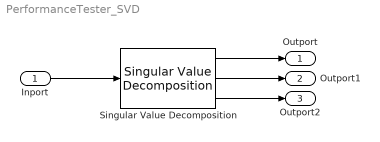
/*
 * Academic License - for use in teaching, academic research, and meeting
 * course requirements at degree granting institutions only.  Not for
 * government, commercial, or other organizational use.
 *
 * File: PerformanceTester_SVD.c
 *
 * Code generated for Simulink model 'PerformanceTester_SVD'.
 *
 * Model version                  : 3.1
 * Simulink Coder version         : 9.4 (R2020b) 29-Jul-2020
 * C/C++ source code generated on : Sun Nov 15 18:27:21 2020
 *
 * Target selection: ert.tlc
 * Embedded hardware selection: ARM Compatible->ARM Cortex-M
 * Code generation objectives:
 *    1. Execution efficiency
 *    2. RAM efficiency
 * Validation result: Not run
 */

#include "PerformanceTester_SVD.h"
#define NumBitsPerChar                 8U

/* Block signals and states (default storage) */
DW rtDW;

/* External inputs (root inport signals with default storage) */
ExtU rtU;

/* External outputs (root outports fed by signals with default storage) */
ExtY rtY;

/* Forward declaration for local functions */
static void isfinite(const real_T x[3000], boolean_T b[3000]);
static real_T xnrm2(int32_T n, const real_T x[3000], int32_T ix0);
static real_T xdotc(int32_T n, const real_T x[3000], int32_T ix0, const real_T
                    y[3000], int32_T iy0);
static void xaxpy(int32_T n, real_T a, int32_T ix0, const real_T y[3000],
                  int32_T iy0, real_T b_y[3000]);
static real_T xnrm2_n(int32_T n, const real_T x[50], int32_T ix0);
static void xaxpy_n5iz(int32_T n, real_T a, const real_T x[3000], int32_T ix0,
  real_T y[60], int32_T iy0);
static void xaxpy_n5(int32_T n, real_T a, const real_T x[60], int32_T ix0, const
                     real_T y[3000], int32_T iy0, real_T b_y[3000]);
static real_T xdotc_n(int32_T n, const real_T x[2500], int32_T ix0, const real_T
                      y[2500], int32_T iy0);
static void xaxpy_n5i(int32_T n, real_T a, int32_T ix0, const real_T y[2500],
                      int32_T iy0, real_T b_y[2500]);
static void xswap(const real_T x[2500], int32_T ix0, int32_T iy0, real_T b_x
                  [2500]);
static void xswap_n(const real_T x[3000], int32_T ix0, int32_T iy0, real_T b_x
                    [3000]);
static void xrotg(real_T a, real_T b, real_T *b_a, real_T *b_b, real_T *c,
                  real_T *s);
static void xrot(const real_T x[2500], int32_T ix0, int32_T iy0, real_T c,
                 real_T s, real_T b_x[2500]);
static void xrot_n(const real_T x[3000], int32_T ix0, int32_T iy0, real_T c,
                   real_T s, real_T b_x[3000]);
static void svd_n(const real_T A[3000], real_T U[3000], real_T s[50], real_T V
                  [2500]);
static void svd(const real_T A[3000], real_T U[3000], real_T S[2500], real_T V
                [2500]);
static void SystemCore_step(const real_T varargin_1[3000], real_T varargout_1
  [3000], real_T varargout_2[50], real_T varargout_3[2500]);
static real_T rtGetNaN(void);
static real32_T rtGetNaNF(void);
extern real_T rtInf;
extern real_T rtMinusInf;
extern real_T rtNaN;
extern real32_T rtInfF;
extern real32_T rtMinusInfF;
extern real32_T rtNaNF;
static void rt_InitInfAndNaN(size_t realSize);
static boolean_T rtIsInf(real_T value);
static boolean_T rtIsInfF(real32_T value);
static boolean_T rtIsNaN(real_T value);
static boolean_T rtIsNaNF(real32_T value);
typedef struct {
  struct {
    uint32_T wordH;
    uint32_T wordL;
  } words;
} BigEndianIEEEDouble;

typedef struct {
  struct {
    uint32_T wordL;
    uint32_T wordH;
  } words;
} LittleEndianIEEEDouble;

typedef struct {
  union {
    real32_T wordLreal;
    uint32_T wordLuint;
  } wordL;
} IEEESingle;

real_T rtInf;
real_T rtMinusInf;
real_T rtNaN;
real32_T rtInfF;
real32_T rtMinusInfF;
real32_T rtNaNF;
static real_T rtGetInf(void);
static real32_T rtGetInfF(void);
static real_T rtGetMinusInf(void);
static real32_T rtGetMinusInfF(void);

/*
 * Initialize rtNaN needed by the generated code.
 * NaN is initialized as non-signaling. Assumes IEEE.
 */
static real_T rtGetNaN(void)
{
  size_t bitsPerReal = sizeof(real_T) * (NumBitsPerChar);
  real_T nan = 0.0;
  if (bitsPerReal == 32U) {
    nan = rtGetNaNF();
  } else {
    union {
      LittleEndianIEEEDouble bitVal;
      real_T fltVal;
    } tmpVal;

    tmpVal.bitVal.words.wordH = 0xFFF80000U;
    tmpVal.bitVal.words.wordL = 0x00000000U;
    nan = tmpVal.fltVal;
  }

  return nan;
}

/*
 * Initialize rtNaNF needed by the generated code.
 * NaN is initialized as non-signaling. Assumes IEEE.
 */
static real32_T rtGetNaNF(void)
{
  IEEESingle nanF = { { 0 } };

  nanF.wordL.wordLuint = 0xFFC00000U;
  return nanF.wordL.wordLreal;
}

/*
 * Initialize the rtInf, rtMinusInf, and rtNaN needed by the
 * generated code. NaN is initialized as non-signaling. Assumes IEEE.
 */
static void rt_InitInfAndNaN(size_t realSize)
{
  (void) (realSize);
  rtNaN = rtGetNaN();
  rtNaNF = rtGetNaNF();
  rtInf = rtGetInf();
  rtInfF = rtGetInfF();
  rtMinusInf = rtGetMinusInf();
  rtMinusInfF = rtGetMinusInfF();
}

/* Test if value is infinite */
static boolean_T rtIsInf(real_T value)
{
  return (boolean_T)((value==rtInf || value==rtMinusInf) ? 1U : 0U);
}

/* Test if single-precision value is infinite */
static boolean_T rtIsInfF(real32_T value)
{
  return (boolean_T)(((value)==rtInfF || (value)==rtMinusInfF) ? 1U : 0U);
}

/* Test if value is not a number */
static boolean_T rtIsNaN(real_T value)
{
  boolean_T result = (boolean_T) 0;
  size_t bitsPerReal = sizeof(real_T) * (NumBitsPerChar);
  if (bitsPerReal == 32U) {
    result = rtIsNaNF((real32_T)value);
  } else {
    union {
      LittleEndianIEEEDouble bitVal;
      real_T fltVal;
    } tmpVal;

    tmpVal.fltVal = value;
    result = (boolean_T)((tmpVal.bitVal.words.wordH & 0x7FF00000) == 0x7FF00000 &&
                         ( (tmpVal.bitVal.words.wordH & 0x000FFFFF) != 0 ||
                          (tmpVal.bitVal.words.wordL != 0) ));
  }

  return result;
}

/* Test if single-precision value is not a number */
static boolean_T rtIsNaNF(real32_T value)
{
  IEEESingle tmp;
  tmp.wordL.wordLreal = value;
  return (boolean_T)( (tmp.wordL.wordLuint & 0x7F800000) == 0x7F800000 &&
                     (tmp.wordL.wordLuint & 0x007FFFFF) != 0 );
}

/*
 * Initialize rtInf needed by the generated code.
 * Inf is initialized as non-signaling. Assumes IEEE.
 */
static real_T rtGetInf(void)
{
  size_t bitsPerReal = sizeof(real_T) * (NumBitsPerChar);
  real_T inf = 0.0;
  if (bitsPerReal == 32U) {
    inf = rtGetInfF();
  } else {
    union {
      LittleEndianIEEEDouble bitVal;
      real_T fltVal;
    } tmpVal;

    tmpVal.bitVal.words.wordH = 0x7FF00000U;
    tmpVal.bitVal.words.wordL = 0x00000000U;
    inf = tmpVal.fltVal;
  }

  return inf;
}

/*
 * Initialize rtInfF needed by the generated code.
 * Inf is initialized as non-signaling. Assumes IEEE.
 */
static real32_T rtGetInfF(void)
{
  IEEESingle infF;
  infF.wordL.wordLuint = 0x7F800000U;
  return infF.wordL.wordLreal;
}

/*
 * Initialize rtMinusInf needed by the generated code.
 * Inf is initialized as non-signaling. Assumes IEEE.
 */
static real_T rtGetMinusInf(void)
{
  size_t bitsPerReal = sizeof(real_T) * (NumBitsPerChar);
  real_T minf = 0.0;
  if (bitsPerReal == 32U) {
    minf = rtGetMinusInfF();
  } else {
    union {
      LittleEndianIEEEDouble bitVal;
      real_T fltVal;
    } tmpVal;

    tmpVal.bitVal.words.wordH = 0xFFF00000U;
    tmpVal.bitVal.words.wordL = 0x00000000U;
    minf = tmpVal.fltVal;
  }

  return minf;
}

/*
 * Initialize rtMinusInfF needed by the generated code.
 * Inf is initialized as non-signaling. Assumes IEEE.
 */
static real32_T rtGetMinusInfF(void)
{
  IEEESingle minfF;
  minfF.wordL.wordLuint = 0xFF800000U;
  return minfF.wordL.wordLreal;
}

static void isfinite(const real_T x[3000], boolean_T b[3000])
{
  real_T x_0;
  int32_T i;
  for (i = 0; i < 3000; i++) {
    x_0 = x[i];
    b[i] = ((!rtIsInf(x_0)) && (!rtIsNaN(x_0)));
  }
}

static real_T xnrm2(int32_T n, const real_T x[3000], int32_T ix0)
{
  real_T absxk;
  real_T scale;
  real_T t;
  real_T y;
  int32_T k;
  int32_T kend;
  y = 0.0;
  scale = 3.3121686421112381E-170;
  kend = ix0 + n;
  for (k = ix0; k < kend; k++) {
    absxk = fabs(x[k - 1]);
    if (absxk > scale) {
      t = scale / absxk;
      y = y * t * t + 1.0;
      scale = absxk;
    } else {
      t = absxk / scale;
      y += t * t;
    }
  }

  return scale * sqrt(y);
}

static real_T xdotc(int32_T n, const real_T x[3000], int32_T ix0, const real_T
                    y[3000], int32_T iy0)
{
  real_T d;
  int32_T ix;
  int32_T iy;
  int32_T k;
  d = 0.0;
  ix = ix0 - 1;
  iy = iy0 - 1;
  for (k = 0; k < n; k++) {
    d += x[ix] * y[iy];
    ix++;
    iy++;
  }

  return d;
}

static void xaxpy(int32_T n, real_T a, int32_T ix0, const real_T y[3000],
                  int32_T iy0, real_T b_y[3000])
{
  int32_T ix;
  int32_T iy;
  int32_T k;
  memcpy(&b_y[0], &y[0], 3000U * sizeof(real_T));
  if (!(a == 0.0)) {
    ix = ix0;
    iy = iy0 - 1;
    for (k = 0; k < n; k++) {
      b_y[iy] += b_y[ix - 1] * a;
      ix++;
      iy++;
    }
  }
}

static real_T xnrm2_n(int32_T n, const real_T x[50], int32_T ix0)
{
  real_T absxk;
  real_T scale;
  real_T t;
  real_T y;
  int32_T k;
  int32_T kend;
  y = 0.0;
  scale = 3.3121686421112381E-170;
  kend = ix0 + n;
  for (k = ix0; k < kend; k++) {
    absxk = fabs(x[k - 1]);
    if (absxk > scale) {
      t = scale / absxk;
      y = y * t * t + 1.0;
      scale = absxk;
    } else {
      t = absxk / scale;
      y += t * t;
    }
  }

  return scale * sqrt(y);
}

static void xaxpy_n5iz(int32_T n, real_T a, const real_T x[3000], int32_T ix0,
  real_T y[60], int32_T iy0)
{
  int32_T ix;
  int32_T iy;
  int32_T k;
  if (!(a == 0.0)) {
    ix = ix0;
    iy = iy0 - 1;
    for (k = 0; k < n; k++) {
      y[iy] += x[ix - 1] * a;
      ix++;
      iy++;
    }
  }
}

static void xaxpy_n5(int32_T n, real_T a, const real_T x[60], int32_T ix0, const
                     real_T y[3000], int32_T iy0, real_T b_y[3000])
{
  int32_T ix;
  int32_T iy;
  int32_T k;
  memcpy(&b_y[0], &y[0], 3000U * sizeof(real_T));
  if (!(a == 0.0)) {
    ix = ix0;
    iy = iy0 - 1;
    for (k = 0; k < n; k++) {
      b_y[iy] += x[ix - 1] * a;
      ix++;
      iy++;
    }
  }
}

static real_T xdotc_n(int32_T n, const real_T x[2500], int32_T ix0, const real_T
                      y[2500], int32_T iy0)
{
  real_T d;
  int32_T ix;
  int32_T iy;
  int32_T k;
  d = 0.0;
  ix = ix0 - 1;
  iy = iy0 - 1;
  for (k = 0; k < n; k++) {
    d += x[ix] * y[iy];
    ix++;
    iy++;
  }

  return d;
}

static void xaxpy_n5i(int32_T n, real_T a, int32_T ix0, const real_T y[2500],
                      int32_T iy0, real_T b_y[2500])
{
  int32_T ix;
  int32_T iy;
  int32_T k;
  memcpy(&b_y[0], &y[0], 2500U * sizeof(real_T));
  if (!(a == 0.0)) {
    ix = ix0;
    iy = iy0 - 1;
    for (k = 0; k < n; k++) {
      b_y[iy] += b_y[ix - 1] * a;
      ix++;
      iy++;
    }
  }
}

static void xswap(const real_T x[2500], int32_T ix0, int32_T iy0, real_T b_x
                  [2500])
{
  real_T temp;
  int32_T ix;
  int32_T iy;
  int32_T k;
  memcpy(&b_x[0], &x[0], 2500U * sizeof(real_T));
  ix = ix0 - 1;
  iy = iy0 - 1;
  for (k = 0; k < 50; k++) {
    temp = b_x[ix];
    b_x[ix] = b_x[iy];
    b_x[iy] = temp;
    ix++;
    iy++;
  }
}

static void xswap_n(const real_T x[3000], int32_T ix0, int32_T iy0, real_T b_x
                    [3000])
{
  real_T temp;
  int32_T ix;
  int32_T iy;
  int32_T k;
  memcpy(&b_x[0], &x[0], 3000U * sizeof(real_T));
  ix = ix0 - 1;
  iy = iy0 - 1;
  for (k = 0; k < 60; k++) {
    temp = b_x[ix];
    b_x[ix] = b_x[iy];
    b_x[iy] = temp;
    ix++;
    iy++;
  }
}

static void xrotg(real_T a, real_T b, real_T *b_a, real_T *b_b, real_T *c,
                  real_T *s)
{
  real_T absa;
  real_T absb;
  real_T ads;
  real_T bds;
  real_T roe;
  real_T scale;
  roe = b;
  absa = fabs(a);
  absb = fabs(b);
  if (absa > absb) {
    roe = a;
  }

  scale = absa + absb;
  if (scale == 0.0) {
    *s = 0.0;
    *c = 1.0;
    *b_a = 0.0;
    *b_b = 0.0;
  } else {
    ads = absa / scale;
    bds = absb / scale;
    *b_a = sqrt(ads * ads + bds * bds) * scale;
    if (roe < 0.0) {
      *b_a = -*b_a;
    }

    *c = a / *b_a;
    *s = b / *b_a;
    if (absa > absb) {
      *b_b = *s;
    } else if (*c != 0.0) {
      *b_b = 1.0 / *c;
    } else {
      *b_b = 1.0;
    }
  }
}

static void xrot(const real_T x[2500], int32_T ix0, int32_T iy0, real_T c,
                 real_T s, real_T b_x[2500])
{
  real_T temp;
  int32_T ix;
  int32_T iy;
  int32_T k;
  memcpy(&b_x[0], &x[0], 2500U * sizeof(real_T));
  ix = ix0 - 1;
  iy = iy0 - 1;
  for (k = 0; k < 50; k++) {
    temp = c * b_x[ix] + s * b_x[iy];
    b_x[iy] = c * b_x[iy] - s * b_x[ix];
    b_x[ix] = temp;
    iy++;
    ix++;
  }
}

static void xrot_n(const real_T x[3000], int32_T ix0, int32_T iy0, real_T c,
                   real_T s, real_T b_x[3000])
{
  real_T temp;
  int32_T ix;
  int32_T iy;
  int32_T k;
  memcpy(&b_x[0], &x[0], 3000U * sizeof(real_T));
  ix = ix0 - 1;
  iy = iy0 - 1;
  for (k = 0; k < 60; k++) {
    temp = c * b_x[ix] + s * b_x[iy];
    b_x[iy] = c * b_x[iy] - s * b_x[ix];
    b_x[ix] = temp;
    iy++;
    ix++;
  }
}

static void svd_n(const real_T A[3000], real_T U[3000], real_T s[50], real_T V
                  [2500])
{
  real_T work[60];
  real_T e[50];
  real_T s_0[50];
  real_T emm1;
  real_T nrm;
  real_T rt;
  real_T shift;
  real_T smm1;
  real_T sqds;
  real_T ztest;
  real_T ztest0;
  real_T ztest0_tmp;
  int32_T colqp1;
  int32_T m;
  int32_T qjj;
  int32_T qp1;
  int32_T qp1jj;
  int32_T qq;
  boolean_T apply_transform;
  boolean_T exitg1;
  memcpy(&rtDW.A[0], &A[0], 3000U * sizeof(real_T));
  memset(&s_0[0], 0, 50U * sizeof(real_T));
  memset(&e[0], 0, 50U * sizeof(real_T));
  memset(&work[0], 0, 60U * sizeof(real_T));
  memset(&U[0], 0, 3000U * sizeof(real_T));
  memset(&rtDW.Vf[0], 0, 2500U * sizeof(real_T));
  for (m = 0; m < 50; m++) {
    qp1 = m + 2;
    colqp1 = 60 * m + m;
    qq = colqp1 + 1;
    apply_transform = false;
    nrm = xnrm2(60 - m, rtDW.A, colqp1 + 1);
    if (nrm > 0.0) {
      apply_transform = true;
      if (rtDW.A[colqp1] < 0.0) {
        s_0[m] = -nrm;
      } else {
        s_0[m] = nrm;
      }

      if (fabs(s_0[m]) >= 1.0020841800044864E-292) {
        nrm = 1.0 / s_0[m];
        qp1jj = (colqp1 - m) + 1;
        for (qjj = qq; qjj <= qp1jj + 59; qjj++) {
          rtDW.A[qjj - 1] *= nrm;
        }
      } else {
        qp1jj = (colqp1 - m) + 1;
        for (qjj = qq; qjj <= qp1jj + 59; qjj++) {
          rtDW.A[qjj - 1] /= s_0[m];
        }
      }

      rtDW.A[colqp1]++;
      s_0[m] = -s_0[m];
    } else {
      s_0[m] = 0.0;
    }

    for (qp1jj = qp1; qp1jj < 51; qp1jj++) {
      qjj = ((qp1jj - 1) * 60 + m) + 1;
      if (apply_transform) {
        memcpy(&rtDW.A_m[0], &rtDW.A[0], 3000U * sizeof(real_T));
        xaxpy(60 - m, -(xdotc(60 - m, rtDW.A, colqp1 + 1, rtDW.A, qjj) /
                        rtDW.A[colqp1]), colqp1 + 1, rtDW.A_m, qjj, rtDW.A);
      }

      e[qp1jj - 1] = rtDW.A[qjj - 1];
    }

    for (qq = m + 1; qq < 61; qq++) {
      qp1jj = (60 * m + qq) - 1;
      U[qp1jj] = rtDW.A[qp1jj];
    }

    if (m + 1 <= 48) {
      nrm = xnrm2_n(49 - m, e, m + 2);
      if (nrm == 0.0) {
        e[m] = 0.0;
      } else {
        if (e[m + 1] < 0.0) {
          e[m] = -nrm;
        } else {
          e[m] = nrm;
        }

        nrm = e[m];
        if (fabs(e[m]) >= 1.0020841800044864E-292) {
          nrm = 1.0 / e[m];
          for (qjj = qp1; qjj < 51; qjj++) {
            e[qjj - 1] *= nrm;
          }
        } else {
          for (qjj = qp1; qjj < 51; qjj++) {
            e[qjj - 1] /= nrm;
          }
        }

        e[m + 1]++;
        e[m] = -e[m];
        for (qq = qp1; qq < 61; qq++) {
          work[qq - 1] = 0.0;
        }

        for (qq = qp1; qq < 51; qq++) {
          xaxpy_n5iz(59 - m, e[qq - 1], rtDW.A, (m + 60 * (qq - 1)) + 2, work, m
                     + 2);
        }

        for (qq = qp1; qq < 51; qq++) {
          memcpy(&rtDW.A_m[0], &rtDW.A[0], 3000U * sizeof(real_T));
          xaxpy_n5(59 - m, -e[qq - 1] / e[m + 1], work, m + 2, rtDW.A_m, ((qq -
                     1) * 60 + m) + 2, rtDW.A);
        }
      }

      for (qq = qp1; qq < 51; qq++) {
        rtDW.Vf[(qq + 50 * m) - 1] = e[qq - 1];
      }
    }
  }

  m = 49;
  e[48] = rtDW.A[2988];
  e[49] = 0.0;
  for (colqp1 = 49; colqp1 >= 0; colqp1--) {
    qq = 60 * colqp1 + colqp1;
    if (s_0[colqp1] != 0.0) {
      for (qp1jj = colqp1 + 2; qp1jj < 51; qp1jj++) {
        qjj = ((qp1jj - 1) * 60 + colqp1) + 1;
        memcpy(&rtDW.A[0], &U[0], 3000U * sizeof(real_T));
        xaxpy(60 - colqp1, -(xdotc(60 - colqp1, U, qq + 1, U, qjj) / U[qq]), qq
              + 1, rtDW.A, qjj, U);
      }

      for (qp1 = colqp1 + 1; qp1 < 61; qp1++) {
        qp1jj = (60 * colqp1 + qp1) - 1;
        U[qp1jj] = -U[qp1jj];
      }

      U[qq]++;
      if (0 <= colqp1 - 1) {
        memset(&U[colqp1 * 60], 0, ((colqp1 - 1) + 1) * sizeof(real_T));
      }
    } else {
      memset(&U[colqp1 * 60], 0, 60U * sizeof(real_T));
      U[qq] = 1.0;
    }
  }

  for (colqp1 = 49; colqp1 >= 0; colqp1--) {
    if ((colqp1 + 1 <= 48) && (e[colqp1] != 0.0)) {
      qq = (50 * colqp1 + colqp1) + 2;
      for (qjj = colqp1 + 2; qjj < 51; qjj++) {
        qp1jj = ((qjj - 1) * 50 + colqp1) + 2;
        memcpy(&rtDW.Vf_c[0], &rtDW.Vf[0], 2500U * sizeof(real_T));
        xaxpy_n5i(49 - colqp1, -(xdotc_n(49 - colqp1, rtDW.Vf, qq, rtDW.Vf,
                    qp1jj) / rtDW.Vf[qq - 1]), qq, rtDW.Vf_c, qp1jj, rtDW.Vf);
      }
    }

    memset(&rtDW.Vf[colqp1 * 50], 0, 50U * sizeof(real_T));
    rtDW.Vf[colqp1 + 50 * colqp1] = 1.0;
  }

  for (qp1 = 0; qp1 < 50; qp1++) {
    ztest = e[qp1];
    if (s_0[qp1] != 0.0) {
      rt = fabs(s_0[qp1]);
      nrm = s_0[qp1] / rt;
      s_0[qp1] = rt;
      if (qp1 + 1 < 50) {
        ztest /= nrm;
      }

      qq = 60 * qp1;
      for (qjj = qq + 1; qjj <= qq + 60; qjj++) {
        U[qjj - 1] *= nrm;
      }
    }

    if ((qp1 + 1 < 50) && (ztest != 0.0)) {
      rt = fabs(ztest);
      nrm = rt / ztest;
      ztest = rt;
      s_0[qp1 + 1] *= nrm;
      colqp1 = (qp1 + 1) * 50;
      for (qjj = colqp1 + 1; qjj <= colqp1 + 50; qjj++) {
        rtDW.Vf[qjj - 1] *= nrm;
      }
    }

    e[qp1] = ztest;
  }

  rt = 0.0;
  nrm = 0.0;
  for (colqp1 = 0; colqp1 < 50; colqp1++) {
    nrm = fmax(nrm, fmax(fabs(s_0[colqp1]), fabs(e[colqp1])));
  }

  while ((m + 1 > 0) && (!(rt >= 75.0))) {
    colqp1 = m;
    qp1 = m;
    exitg1 = false;
    while ((!exitg1) && (qp1 > -1)) {
      colqp1 = qp1;
      if (qp1 == 0) {
        exitg1 = true;
      } else {
        ztest0 = fabs(e[qp1 - 1]);
        if ((ztest0 <= (fabs(s_0[qp1 - 1]) + fabs(s_0[qp1])) *
             2.2204460492503131E-16) || (ztest0 <= 1.0020841800044864E-292) ||
            ((rt > 20.0) && (ztest0 <= 2.2204460492503131E-16 * nrm))) {
          e[qp1 - 1] = 0.0;
          exitg1 = true;
        } else {
          qp1--;
        }
      }
    }

    if (colqp1 == m) {
      ztest0 = 4.0;
    } else {
      qp1 = m + 1;
      qq = m + 1;
      exitg1 = false;
      while ((!exitg1) && (qq >= colqp1)) {
        qp1 = qq;
        if (qq == colqp1) {
          exitg1 = true;
        } else {
          ztest0 = 0.0;
          if (qq < m + 1) {
            ztest0 = fabs(e[qq - 1]);
          }

          if (qq > colqp1 + 1) {
            ztest0 += fabs(e[qq - 2]);
          }

          ztest = fabs(s_0[qq - 1]);
          if ((ztest <= 2.2204460492503131E-16 * ztest0) || (ztest <=
               1.0020841800044864E-292)) {
            s_0[qq - 1] = 0.0;
            exitg1 = true;
          } else {
            qq--;
          }
        }
      }

      if (qp1 == colqp1) {
        ztest0 = 3.0;
      } else if (m + 1 == qp1) {
        ztest0 = 1.0;
      } else {
        ztest0 = 2.0;
        colqp1 = qp1;
      }
    }

    switch ((int32_T)ztest0) {
     case 1:
      ztest0 = e[m - 1];
      e[m - 1] = 0.0;
      for (qq = m; qq >= colqp1 + 1; qq--) {
        xrotg(s_0[qq - 1], ztest0, &s_0[qq - 1], &ztest0, &ztest, &sqds);
        if (qq > colqp1 + 1) {
          ztest0_tmp = e[qq - 2];
          ztest0 = ztest0_tmp * -sqds;
          e[qq - 2] = ztest0_tmp * ztest;
        }

        memcpy(&rtDW.Vf_c[0], &rtDW.Vf[0], 2500U * sizeof(real_T));
        xrot(rtDW.Vf_c, (qq - 1) * 50 + 1, 50 * m + 1, ztest, sqds, rtDW.Vf);
      }
      break;

     case 2:
      ztest0 = e[colqp1 - 1];
      e[colqp1 - 1] = 0.0;
      for (qp1 = colqp1 + 1; qp1 <= m + 1; qp1++) {
        xrotg(s_0[qp1 - 1], ztest0, &s_0[qp1 - 1], &ztest, &sqds, &smm1);
        ztest0_tmp = e[qp1 - 1];
        ztest0 = ztest0_tmp * -smm1;
        e[qp1 - 1] = ztest0_tmp * sqds;
        memcpy(&rtDW.A[0], &U[0], 3000U * sizeof(real_T));
        xrot_n(rtDW.A, (qp1 - 1) * 60 + 1, (colqp1 - 1) * 60 + 1, sqds, smm1, U);
      }
      break;

     case 3:
      smm1 = s_0[m - 1];
      sqds = e[m - 1];
      ztest = fmax(fmax(fmax(fmax(fabs(s_0[m]), fabs(smm1)), fabs(sqds)), fabs
                        (s_0[colqp1])), fabs(e[colqp1]));
      ztest0 = s_0[m] / ztest;
      smm1 /= ztest;
      emm1 = sqds / ztest;
      sqds = s_0[colqp1] / ztest;
      smm1 = ((smm1 + ztest0) * (smm1 - ztest0) + emm1 * emm1) / 2.0;
      emm1 *= ztest0;
      emm1 *= emm1;
      if ((smm1 != 0.0) || (emm1 != 0.0)) {
        shift = sqrt(smm1 * smm1 + emm1);
        if (smm1 < 0.0) {
          shift = -shift;
        }

        shift = emm1 / (smm1 + shift);
      } else {
        shift = 0.0;
      }

      ztest0 = (sqds + ztest0) * (sqds - ztest0) + shift;
      ztest = e[colqp1] / ztest * sqds;
      for (qq = colqp1 + 1; qq <= m; qq++) {
        xrotg(ztest0, ztest, &sqds, &smm1, &emm1, &shift);
        if (qq > colqp1 + 1) {
          e[qq - 2] = sqds;
        }

        ztest0_tmp = e[qq - 1];
        ztest0 = s_0[qq - 1];
        e[qq - 1] = ztest0_tmp * emm1 - ztest0 * shift;
        ztest = shift * s_0[qq];
        s_0[qq] *= emm1;
        memcpy(&rtDW.Vf_c[0], &rtDW.Vf[0], 2500U * sizeof(real_T));
        xrot(rtDW.Vf_c, (qq - 1) * 50 + 1, 50 * qq + 1, emm1, shift, rtDW.Vf);
        xrotg(ztest0 * emm1 + ztest0_tmp * shift, ztest, &s_0[qq - 1], &sqds,
              &smm1, &emm1);
        ztest0 = e[qq - 1] * smm1 + emm1 * s_0[qq];
        s_0[qq] = e[qq - 1] * -emm1 + smm1 * s_0[qq];
        ztest = emm1 * e[qq];
        e[qq] *= smm1;
        memcpy(&rtDW.A[0], &U[0], 3000U * sizeof(real_T));
        xrot_n(rtDW.A, (qq - 1) * 60 + 1, 60 * qq + 1, smm1, emm1, U);
      }

      e[m - 1] = ztest0;
      rt++;
      break;

     default:
      if (s_0[colqp1] < 0.0) {
        s_0[colqp1] = -s_0[colqp1];
        qq = 50 * colqp1;
        for (qjj = qq + 1; qjj <= qq + 50; qjj++) {
          rtDW.Vf[qjj - 1] = -rtDW.Vf[qjj - 1];
        }
      }

      qp1 = colqp1 + 1;
      while ((colqp1 + 1 < 50) && (s_0[colqp1] < s_0[qp1])) {
        rt = s_0[colqp1];
        s_0[colqp1] = s_0[qp1];
        s_0[qp1] = rt;
        memcpy(&rtDW.Vf_c[0], &rtDW.Vf[0], 2500U * sizeof(real_T));
        xswap(rtDW.Vf_c, 50 * colqp1 + 1, (colqp1 + 1) * 50 + 1, rtDW.Vf);
        memcpy(&rtDW.A[0], &U[0], 3000U * sizeof(real_T));
        xswap_n(rtDW.A, 60 * colqp1 + 1, (colqp1 + 1) * 60 + 1, U);
        colqp1 = qp1;
        qp1++;
      }

      rt = 0.0;
      m--;
      break;
    }
  }

  for (m = 0; m < 50; m++) {
    s[m] = s_0[m];
    memcpy(&V[m * 50], &rtDW.Vf[m * 50], 50U * sizeof(real_T));
  }
}

static void svd(const real_T A[3000], real_T U[3000], real_T S[2500], real_T V
                [2500])
{
  real_T s[50];
  real_T x;
  int32_T i;
  boolean_T p;
  p = true;
  for (i = 0; i < 3000; i++) {
    if (p) {
      x = A[i];
      if ((!rtIsInf(x)) && (!rtIsNaN(x))) {
      } else {
        p = false;
      }
    } else {
      p = false;
    }
  }

  if (p) {
    svd_n(A, U, s, V);
  } else {
    for (i = 0; i < 3000; i++) {
      U[i] = (rtNaN);
    }

    for (i = 0; i < 50; i++) {
      s[i] = (rtNaN);
    }

    for (i = 0; i < 2500; i++) {
      V[i] = (rtNaN);
    }
  }

  memset(&S[0], 0, 2500U * sizeof(real_T));
  for (i = 0; i < 50; i++) {
    S[i + 50 * i] = s[i];
  }
}

static void SystemCore_step(const real_T varargin_1[3000], real_T varargout_1
  [3000], real_T varargout_2[50], real_T varargout_3[2500])
{
  int32_T b_k;
  boolean_T x[3000];
  boolean_T exitg1;
  boolean_T y;
  isfinite(varargin_1, x);
  y = true;
  b_k = 0;
  exitg1 = false;
  while ((!exitg1) && (b_k < 3000)) {
    if (!x[b_k]) {
      y = false;
      exitg1 = true;
    } else {
      b_k++;
    }
  }

  if (y) {
    svd(varargin_1, varargout_1, rtDW.s, varargout_3);
    for (b_k = 0; b_k < 50; b_k++) {
      varargout_2[b_k] = rtDW.s[50 * b_k + b_k];
    }
  } else {
    memset(&varargout_1[0], 0, 3000U * sizeof(real_T));
    memset(&varargout_2[0], 0, 50U * sizeof(real_T));
    memset(&varargout_3[0], 0, 2500U * sizeof(real_T));
  }
}

/* Model step function */
void PerformanceTester_SVD_step(void)
{
  /* Outport: '<Root>/Outport1' incorporates:
   *  Inport: '<Root>/Inport'
   *  MATLABSystem: '<Root>/Singular Value Decomposition'
   */
  SystemCore_step(rtU.Inport, rtY.Outport, rtY.Outport1, rtY.Outport2);
}
